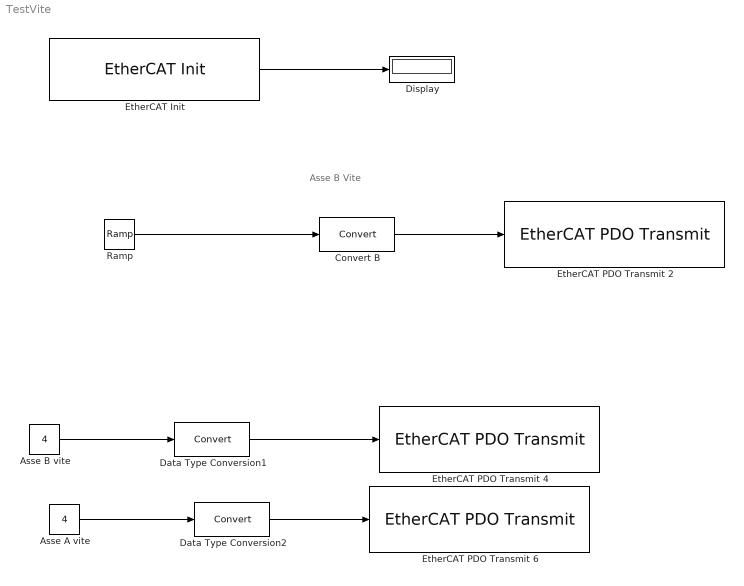
/*
 * TestVite.c
 *
 * Academic License - for use in teaching, academic research, and meeting
 * course requirements at degree granting institutions only.  Not for
 * government, commercial, or other organizational use.
 *
 * Code generation for model "TestVite".
 *
 * Model version              : 1.2
 * Simulink Coder version : 8.12 (R2017a) 16-Feb-2017
 * C source code generated on : Fri Dec 10 10:39:23 2021
 *
 * Target selection: slrt.tlc
 * Note: GRT includes extra infrastructure and instrumentation for prototyping
 * Embedded hardware selection: Generic->32-bit x86 compatible
 * Code generation objectives: Unspecified
 * Validation result: Not run
 */

#include "rt_logging_mmi.h"
#include "TestVite_capi.h"
#include "TestVite.h"
#include "TestVite_private.h"

/* Block signals (auto storage) */
B_TestVite_T TestVite_B;

/* Block states (auto storage) */
DW_TestVite_T TestVite_DW;

/* Real-time model */
RT_MODEL_TestVite_T TestVite_M_;
RT_MODEL_TestVite_T *const TestVite_M = &TestVite_M_;

/* Model output function */
static void TestVite_output(void)
{
  real_T currentTime;

  {
    /* user code (Output function Header) */
    {
      /*------------ S-Function Block: <Root>/EtherCAT Init  Process Received Frames ------------*/
      int32_T data[6]= { 0 };

      int32_T msdata[4] = { 0 };

      xpcEtherCATReadProcessData(0,NULL);
      mwErrorGet((int_T)0,
                 &data[0], &data[1], &data[2], &data[3],&data[4],&data[5]);
      memcpy(&TestVite_B.EtherCATInit[0], data,6*sizeof(int32_T));
      mwErrorClear( (int_T)0 );

      // Clear all momentary triggered values
    }

    /* DataTypeConversion: '<Root>/Data Type Conversion2' incorporates:
     *  Constant: '<Root>/Asse A vite'
     */
    currentTime = floor(TestVite_P.AsseAvite_Value);
    if (rtIsNaN(currentTime) || rtIsInf(currentTime)) {
      currentTime = 0.0;
    } else {
      currentTime = fmod(currentTime, 256.0);
    }

    TestVite_B.DataTypeConversion2 = (int8_T)(currentTime < 0.0 ? (int32_T)
      (int8_T)-(int8_T)(uint8_T)-currentTime : (int32_T)(int8_T)(uint8_T)
      currentTime);

    /* End of DataTypeConversion: '<Root>/Data Type Conversion2' */

    /* S-Function (xpcethercatpdotx): '<Root>/EtherCAT PDO Transmit 6' */

    /* Level2 S-Function Block: '<Root>/EtherCAT PDO Transmit 6' (xpcethercatpdotx) */
    {
      SimStruct *rts = TestVite_M->childSfunctions[0];
      sfcnOutputs(rts,1);
    }

    /* DataTypeConversion: '<Root>/Data Type Conversion1' incorporates:
     *  Constant: '<Root>/Asse B vite'
     */
    currentTime = floor(TestVite_P.AsseBvite_Value);
    if (rtIsNaN(currentTime) || rtIsInf(currentTime)) {
      currentTime = 0.0;
    } else {
      currentTime = fmod(currentTime, 256.0);
    }

    TestVite_B.DataTypeConversion1 = (int8_T)(currentTime < 0.0 ? (int32_T)
      (int8_T)-(int8_T)(uint8_T)-currentTime : (int32_T)(int8_T)(uint8_T)
      currentTime);

    /* End of DataTypeConversion: '<Root>/Data Type Conversion1' */

    /* S-Function (xpcethercatpdotx): '<Root>/EtherCAT PDO Transmit 4' */

    /* Level2 S-Function Block: '<Root>/EtherCAT PDO Transmit 4' (xpcethercatpdotx) */
    {
      SimStruct *rts = TestVite_M->childSfunctions[1];
      sfcnOutputs(rts,1);
    }

    /* Step: '<S1>/Step' */
    currentTime = TestVite_M->Timing.t[0];
    if (currentTime < TestVite_P.Ramp_start) {
      TestVite_B.Step = TestVite_P.Step_Y0;
    } else {
      TestVite_B.Step = TestVite_P.Ramp_slope;
    }

    /* End of Step: '<S1>/Step' */

    /* Clock: '<S1>/Clock' */
    TestVite_B.Clock = TestVite_M->Timing.t[0];

    /* Sum: '<S1>/Sum' incorporates:
     *  Constant: '<S1>/Constant'
     */
    TestVite_B.Sum = TestVite_B.Clock - TestVite_P.Ramp_start;

    /* Product: '<S1>/Product' */
    TestVite_B.Product = TestVite_B.Step * TestVite_B.Sum;

    /* Sum: '<S1>/Output' incorporates:
     *  Constant: '<S1>/Constant1'
     */
    TestVite_B.Output = TestVite_B.Product + TestVite_P.Ramp_X0;

    /* DataTypeConversion: '<Root>/Convert B' */
    currentTime = floor(TestVite_B.Output);
    if (rtIsNaN(currentTime) || rtIsInf(currentTime)) {
      currentTime = 0.0;
    } else {
      currentTime = fmod(currentTime, 65536.0);
    }

    TestVite_B.ConvertB = (int16_T)(currentTime < 0.0 ? (int32_T)(int16_T)
      -(int16_T)(uint16_T)-currentTime : (int32_T)(int16_T)(uint16_T)currentTime);

    /* End of DataTypeConversion: '<Root>/Convert B' */

    /* S-Function (xpcethercatpdotx): '<Root>/EtherCAT PDO Transmit 2' */

    /* Level2 S-Function Block: '<Root>/EtherCAT PDO Transmit 2' (xpcethercatpdotx) */
    {
      SimStruct *rts = TestVite_M->childSfunctions[2];
      sfcnOutputs(rts,1);
    }

    /* user code (Output function Trailer) */
    {
      /*------------ S-Function Block: <Root>/EtherCAT Init  Write Process Data ,Run Admin Tasks and then Write Acyclic Data------------*/
      static char_T *errMsg;
      xpcEtherCATWriteProcessData(0,NULL);
      xpcEtherCATExecAdminJobs(0);
      xpcEtherCATWriteAcyclicData(0);
    }
  }
}

/* Model update function */
static void TestVite_update(void)
{
  /* Update absolute time for base rate */
  /* The "clockTick0" counts the number of times the code of this task has
   * been executed. The absolute time is the multiplication of "clockTick0"
   * and "Timing.stepSize0". Size of "clockTick0" ensures timer will not
   * overflow during the application lifespan selected.
   * Timer of this task consists of two 32 bit unsigned integers.
   * The two integers represent the low bits Timing.clockTick0 and the high bits
   * Timing.clockTickH0. When the low bit overflows to 0, the high bits increment.
   */
  if (!(++TestVite_M->Timing.clockTick0)) {
    ++TestVite_M->Timing.clockTickH0;
  }

  TestVite_M->Timing.t[0] = TestVite_M->Timing.clockTick0 *
    TestVite_M->Timing.stepSize0 + TestVite_M->Timing.clockTickH0 *
    TestVite_M->Timing.stepSize0 * 4294967296.0;

  {
    /* Update absolute timer for sample time: [0.001s, 0.0s] */
    /* The "clockTick1" counts the number of times the code of this task has
     * been executed. The absolute time is the multiplication of "clockTick1"
     * and "Timing.stepSize1". Size of "clockTick1" ensures timer will not
     * overflow during the application lifespan selected.
     * Timer of this task consists of two 32 bit unsigned integers.
     * The two integers represent the low bits Timing.clockTick1 and the high bits
     * Timing.clockTickH1. When the low bit overflows to 0, the high bits increment.
     */
    if (!(++TestVite_M->Timing.clockTick1)) {
      ++TestVite_M->Timing.clockTickH1;
    }

    TestVite_M->Timing.t[1] = TestVite_M->Timing.clockTick1 *
      TestVite_M->Timing.stepSize1 + TestVite_M->Timing.clockTickH1 *
      TestVite_M->Timing.stepSize1 * 4294967296.0;
  }
}
